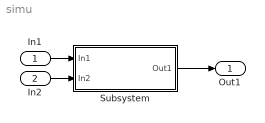
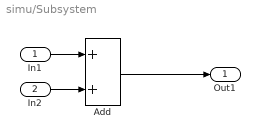
/*
 * File: simu.c
 *
 * Code generated for Simulink model 'simu'.
 *
 * Model version                  : 1.6
 * Simulink Coder version         : 9.9 (R2023a) 19-Nov-2022
 * C/C++ source code generated on : Fri Jun  2 18:26:56 2023
 *
 * Target selection: ert.tlc
 * Embedded hardware selection: Intel->x86-64 (Windows64)
 * Code generation objectives: Unspecified
 * Validation result: Not run
 */

#include "simu.h"

/* External inputs (root inport signals with default storage) */
ExtU_simu_T simu_U;

/* External outputs (root outports fed by signals with default storage) */
ExtY_simu_T simu_Y;

/* Real-time model */
static RT_MODEL_simu_T simu_M_;
RT_MODEL_simu_T *const simu_M = &simu_M_;

/* Model step function */
void simu_step(void)
{
  /* Outport: '<Root>/Out1' incorporates:
   *  Inport: '<Root>/In1'
   *  Inport: '<Root>/In2'
   *  Sum: '<S1>/Add'
   */
  simu_Y.Out1 = simu_U.In1 + simu_U.In2;
}
